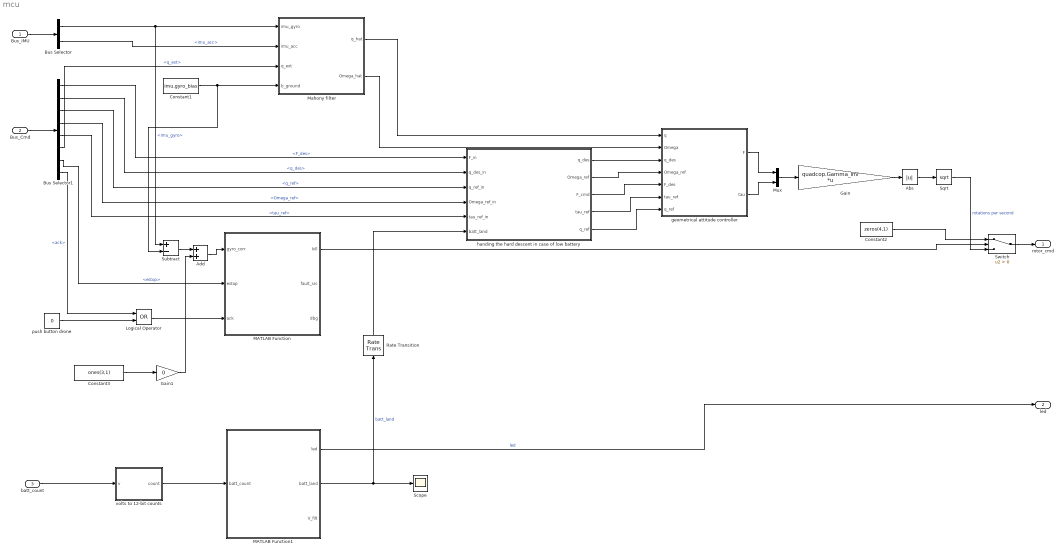
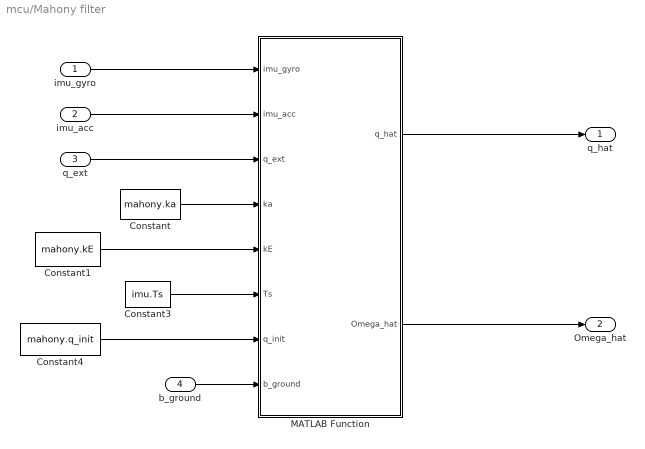
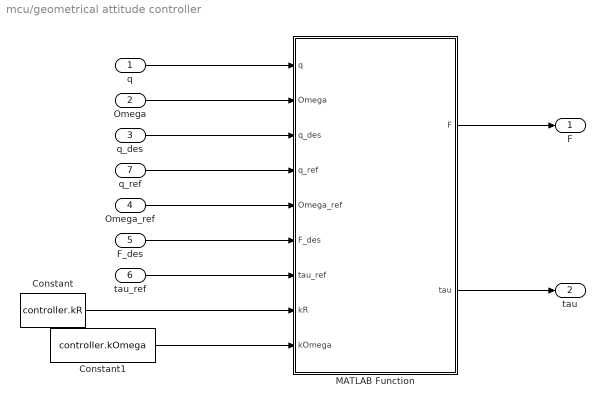
== matlab function mcu/geometrical attitude controller/MATLAB Function ==
function [F, tau] = geo_attitude_ctrl(q, Omega, q_des, q_ref, Omega_ref, F_des, tau_ref, kR, kOmega)
%#codegen
% GEO_ATTITUDE_CTRL Geometrischer Lageregler auf SO(3).
%   Lee/Leok/McClamroch (CDC 2010), 2-DOF Error-Feedback:
%       tau = tau_ff - kR*eR - kOmega*eOmega
%
%   ZWEI getrennte Referenzen (NICHT identisch!):
%     q_des : Solllage aus dem Folgeregler pos_ctrl (mit Positionsrueckfuehrung)
%             -> bestimmt den Lagefehler e_R.
%     q_ref : nominelle Solllage aus traj_gen (reine Vorsteuerung)
%             -> Frame, in dem Omega_ref definiert ist ([Om_ref]x = R_ref' R^T_ref)
%             -> Transport von Omega_ref in den aktuellen Body-Frame.
%
%
%   EIN-/AUSGAENGE:
%     q, Omega         : aktuelle Lage/Drehrate
%     q_des            : Solllage aus pos_ctrl
%     q_ref            : Solllage aus traj_gen 
%     Omega_ref        : Vorsteuer-Drehrate im Body-Frame aus traj_gen
%     F_des, tau_ff    : Vorsteuerung Schub/Moment aus traj_gen
%     kR, kOmega       : 3x3-Gains
%     F, tau           : Schubsollwert, Stellmoment

R    = quat2dcm_local(q)';      
Rdes = quat2dcm_local(q_des)';   
Rref = quat2dcm_local(q_ref)';    

% --- Lagefehler gegen die rueckgefuehrte Solllage R_des ---
S  = 0.5*(Rdes'*R - R'*Rdes);     % schiefsymmetrisch
eR = [S(3,2); S(1,3); S(2,1)];    % vee

% --- Drehratenfehler: Omega_ref aus R_ref-Frame in aktuellen Frame transportieren ---
eOmega = Omega - R'*Rref*Omega_ref;

% --- Stellgesetz ---
tau = tau_ref - kR*eR - kOmega*eOmega;
% Optional voll-geometrisch: 
% tau = tau + cross(Omega, J*Omega);

F = F_des;
end

== matlab function mcu/Mahony filter/MATLAB Function ==
function [q_hat, Omega_hat] = mahony_filter(imu_gyro, imu_acc, q_ext, ka, kE, Ts, q_init, b_ground)
%#codegen
% MAHONY_FILTER  Expliziter Komplementaerfilter auf SO(3), zeitdiskret.
%   Mahony/Hamel/Pflimlin (TAC 2008)). km = 0 (kein Magnetometer)
%
%     - Accel misst spezifische Kraft; im Hover [0;0;-g] -> Richtung
%       v0 = [0;0;-1]. 
%
%   EIN-/AUSGAENGE:
%     imu_gyro [rad/s] (3x1)  : gemessene Koerperdrehrate (mit Bias+Rauschen)
%     imu_acc  [m/s^2] (3x1)  : gemessene spezifische Kraft (Koerper)
%     q_ext    (4x1)          : externe Mocap-Lage 
%     ka, kE, kb (Skalar)     : Tilt-, Externreferenz-, Bias-Gain
%     Ts       [s]            : Abtastperiode 
%     q_init   (4x1)          : Startlage 
%     b_init   (3x1)          : Startbias
%     b_clamp  (Skalar)       : Maximalwert des Bias
%     q_hat    (4x1)          : geschaetzte Lage
%     Omega_hat(3x1)          : bias-korrigierte Drehrate (fuer Lageregler)
%     b_hat    (3x1)          : geschaetzter Gyro-Bias (Diagnose)
%     e_acc    (3x1)          : Innovationsterm zur Diagnose

persistent q
if isempty(q)
    q = q_init; % Startlage
end

% --- 1) Innovation (nur Richtung, Betrag traegt keine Lageinfo) ---
na = norm(imu_acc);
if na > 1e-6
    v_acc = imu_acc / na; % spezifische Kraft DCM_{be}(a -g*[0;0;-1]) in Körperkoordinaten
    v_hat = quatRotate(q, [0; 0; 1]); % geschaetzte Schwerkraftrichtung in Körperkoordinaten
    e_acc = cross(v_acc, v_hat); % Schätzfehler = Innovationsterm
else
    e_acc = [0; 0; 0]; % Freifall = unbrauchbar
end

% --- 2) Externe Mocap-Lage ---
nE = norm(q_ext);
if nE > 0.5
    qe    = q_ext / nE; % normieren da durch Quantisierung/Rauschen q_ext kein Einheitsquaternion
    q_err = quatMul(quatConj(q), qe); % Koerperinkrement, das \hat{q} -> q_ext dreht
    if q_err(1) < 0 
        q_err = -q_err; % kuerzeste Drehung, da Doppeldeckung des SO(3) durch Quaternionen
    end  
    e_ext = 2 * q_err(2:4); % Rotationsvektor (Kleinwinkel ~ Fehlerwinkel)
else
    e_ext = [0; 0; 0]; % kein gueltiges q_ext -> für Innovationsterm nur Gyro und Accel nutzen
end

% --- 3) Gewichtete Gesamt-Innovation (Koerperframe) ---
omega_mes = ka * e_acc + kE * e_ext;

% --- 5) Korrigierte Drehrate + Quaternion-Propagation ---
omega = imu_gyro - b_ground + omega_mes; % Eingang der Kinematik
theta = omega * Ts;
ang   = norm(theta);
if ang > 1e-9
    norm_theta = theta / ang;
    dq = [cos(ang/2); sin(ang/2) * norm_theta];
else
    dq = [1; 0.5 * theta]; % Kleinwinkel-Naeherung
end
q = quatMul(q, dq); % Rechtsmultiplikation = Koerperinkrement
q = q / norm(q); % auf SO(3) halten

% --- 6) Ausgaenge ---
q_hat     = q;
Omega_hat = imu_gyro - b_ground; % Bias-korrigiert
end

== matlab function mcu/MATLAB Function ==
function [kill, fault_src, dbg] = safety_overspeed(gyro_corr, estop, ack, safety)
%#codegen
% SAFETY_OVERSPEED  Onboard-KILL-Latch
%
% Overspeed-Entprell-Latch ∪ Hard-Kill (estop==2).
% Aktion downstream: rotors_cmd = 0  (Override NACH Mixer / VOR Motor-PT1+ESC).
% KILL dominiert LAND; KILL latcht; Re-Arm NIE in der Luft.
%
% Warum eine Funktion fuer beide KILL-Quellen: Overspeed und Hard-Kill teilen
% denselben Latch, dieselbe Aktion (rotors_cmd=0) und dieselbe Re-Arm-Semantik
% (ack loescht). Eine gemeinsame Funktion haelt die Re-Arm-Bedingung an EINER
% Stelle und macht "KILL dominiert LAND" trivial. Der geregelte Soft-Land
% (estop==1) wird hier NICHT behandelt — das ist die GCS-Mode-Maschine.
%
% Eingaenge
%   gyro_corr : 3x1  bias-korrigierte Drehrate [rad/s]  (MESSUNG, nicht Schaetzer!)
%   estop : uint8  0 normal / 1 soft-land / 2 hard-kill (aus Bus_Cmd, Uplink)
%   ack : bool   Quittung, bereits ge-OR-t (Teensy-Taster-Flanke | Bus_Cmd.ack)
%   safety : struct  .omega_max [rad/s], .debounce_N (>=1), .use_norm (bool)
%
% Ausgaenge
%   kill : bool   latched -> nachgelagerter Switch zwingt rotors_cmd=0
%   fault_src : uint8  0 none / 1 overspeed / 2 hard-kill   (LED/Debug)
%   dbg : 3x1    [cnt; over_inst; ack_edge]           (verify/logging)
%
% Re-Arm (FAULT->ARMED) NUR bei:  steigende ack-Flanke  &  ~over_inst  &  estop~=2.
% Die ack-FLANKE (nicht der Pegel) verhindert, dass ein gehaltenes ack einen
% frischen Trip sofort wieder loescht oder mid-air in einen Sturz re-armt. Die
% Boden-Bedingung ("nie in der Luft") wird prozedural durch den physischen
% Teensy-Taster garantiert (Bediener hebt die Drohne auf, drueckt) — onboard
% existiert keine Pos/Vel-Schaetzung fuer ein Logik-Interlock (sitzt GCS-seitig).
% Optionaler Idle-Interlock siehe Hinweis am Dateiende.

persistent latched cnt ack_prev src
if isempty(latched)
    latched = false;
    cnt = uint16(0);
    ack_prev = false;
    src = uint8(0);
end

gw = reshape(gyro_corr, 3, 1);

% --- Overspeed-Detektor, entprellt (N aufeinanderfolgende Samples) ---
if safety.use_norm
    over_inst = sqrt(gw(1)*gw(1) + gw(2)*gw(2) + gw(3)*gw(3)) > safety.omega_max;
else
    over_inst = (abs(gw(1)) > safety.omega_max) || ...
                (abs(gw(2)) > safety.omega_max) || ...
                (abs(gw(3)) > safety.omega_max);
end

Nreq = uint16(safety.debounce_N);
if over_inst
    if cnt < Nreq
        cnt = cnt + uint16(1);
    end
else
    cnt = uint16(0);                 % ein gutes Sample setzt den Zaehler zurueck
end
over_deb = cnt >= Nreq;

% --- Hard-Kill: sofort, keine Entprellung ---
hard_kill = (estop == uint8(2));

% --- KILL setzen (latcht; Quelle nur beim ersten Setzen vermerkt) ---
if over_deb && ~latched
    latched = true;  
    src = uint8(1); % due to fast turning rates from gyro
end
if hard_kill && ~latched
    latched = true;  
    src = uint8(2);
end

% Re-Arm: steigende ack-Flanke 
ack_edge = ack && ~ack_prev;
if latched && ack_edge && ~over_inst && (estop ~= uint8(2)) % momentan kein Overspeed & kein Hard-Kill
    latched = false;
    cnt     = uint16(0);
    src     = uint8(0);
end
ack_prev = ack;

kill      = latched;
fault_src = src;
dbg       = [double(cnt); double(over_inst); double(ack_edge)];
end

% -------------------------------------------------------------------------
% OPTIONALER IDLE-INTERLOCK (nicht aktiviert):
% Will man re-arm zusaetzlich gegen "in der Luft" absichern OHNE Pos-Schaetzung,
% kann onboard ein Throttle-Idle-Proxy gefordert werden, z.B. F_ref <= F_idle:
%   ...&& (F_ref <= safety.F_rearm_idle) ...
% F_ref liegt im empfangenen Bus_Cmd vor. Das ersetzt die Boden-Schaetzung durch
% "Bediener hat heruntergeregelt", bleibt aber Heuristik (Hover braucht m*g>0).
% Bewusst NICHT verdrahtet, bis §13 das fordert.

== matlab function mcu/MATLAB Function1 ==
function [led, batt_land, V_filt] = safety_battery(batt_count, safety)
%#codegen
% safety_battery Onboard-Batterie-Monitor, 4S LiPo via PM06 V2.
%
% Kette: ADC-count --> V_batt --> V_filt --> led
%        V_filt <= V_floor --(Latch bis Reboot) --> batt_land
%
%   WARN/CRIT -> LED. Bediener im Raum sieht sie, loest MANUELL GCS-Soft-Land
%               (estop=1 => Uplink) aus, solange Marge da ist.
%   FLOOR     -> batt_land = true -> onboard BLINDER Hard-Floor-Descent 
%               (safety_landcmd.m) als Backstop, falls niemand reagiert.
% KILL (Overspeed/Hard-Kill) dominiert: rotors_cmd=0 nachgelagert sticht jeden LAND.
%
% LATCH IST PERMANENT —> KEIN Re-Arm. Zwei Gruende:
%   1) Akkuwechsel = Teensy-Reboot -> persistent wird genullt.
%   2) WICHTIGER: Im Descent faellt der Schub auf 0.98*m*g -> weniger Strom ->
%      V erholt sich UEBER den Floor. Ohne Latch wuerde batt_land deasserten,
%      das GCS-Kommando (Hover @ m*g) kaeme zurueck, Last steigt, V sackt wieder
%      -> GRENZZYKLUS Sinken<->Schweben auf fast leerem Akku. Der Latch verhindert
%      das: einmal committed -> bis zum Boden sinken.
%
% Eingaenge:
%   batt_count : ADC-Rohwert (12 bit, 0..4095). In Sim aus simulierter V-Rampe
%                (count = round((V_batt - b)/k)); auf HW analogRead(A16/Pin40).
%   safety     : struct  .batt_k .batt_b .batt_alpha .V_warn .V_crit .V_floor
%                        .V_hyst
% Ausgaenge:
%   led        : uint8  0 NORMAL / 1 WARN / 2 CRIT   (-> GPIO-Blinkmuster)
%   batt_land  : bool   latched -> safety_landcmd Hard-Floor-Override
%   V_filt     : double gefilterte Batteriespannung [V]  (dbg/logging)
%
% Hysterese: Recovery (Richtung NORMAL) braucht + V_hyst -> kein Flattern bei
% Last-Sag/Rauschen. (tau ~0.5..1 s) glaettet Sag + Rauschen UND verhindert,
% dass ein kurzer Spannungseinbruch unter Last den Floor faelschlich triggert.

persistent Vf state landed
if isempty(Vf)
    Vf     = safety.batt_k * double(batt_count) + safety.batt_b;  % init
    state  = uint8(0);
    landed = false;
end

% --- ADC -> Spannung ---
V_raw = safety.batt_k * double(batt_count) + safety.batt_b;

% --- Tiefpass: V_filt += alpha*(V_raw - V_filt) ---
Vf = Vf + safety.batt_alpha * (V_raw - Vf);
V  = Vf;

% --- 3-stufige LED mit Hysterese (Batterienzeige) ---
% NORMAL(0) -> WARN(1) -> CRIT(2); Rueckweg braucht + V_hyst.
switch state
    case uint8(0) % NORMAL
        if V <= safety.V_warn                     
            state = uint8(1); 
        end
    case uint8(1) % WARN
        if V <= safety.V_crit                 
            state = uint8(2);
        elseif V >= safety.V_warn + safety.V_hyst
            state = uint8(0); 
        end
    otherwise % CRIT (2)
        if V >= safety.V_crit + safety.V_hyst     
            state = uint8(1); 
        end
end

% --- harte Landung ---
if V <= safety.V_floor
    landed = true;
end

led       = state;
batt_land = landed;
V_filt    = V;
end

== matlab function mcu/volts to 12-bit counts ==
function count = v2c(v, safety)

count = round((v - safety.batt_b)/safety.batt_k);

== matlab function mcu/handing the hard descent in case of low battery ==
function [q_des, Omega_ref, F_cmd, tau_ref, q_ref] = ...
         safety_landcmd(F_in, q_des_in, q_ref_in, Omega_ref_in, tau_ref_in, ...
                        batt_land, safety)
%#codegen
% SAFETY_LANDCMD  Onboard BLINDE harte Landung
%
% Sitzt im Pfad VOR geo_attitude_ctrl. Bei batt_land = true ueberschreibt
% er den empfangenen Kommandosatz durch einen blinden Sinkflug.
% BLIND, weil onboard KEINE Pos/Vel-Schaetzung existiert. 
%
% Eingaenge: 
%   F_in         : scalar  Schub-Kommando an geo_attitude_ctrl (F = F_des)
%   q_des_in     : 4x1     Folgeregler-Lage (pos_ctrl)
%   q_ref_in     : 4x1     Vorsteuerlage (traj_gen)
%   Omega_ref_in : 3x1     Vorsteuer-Rate
%   tau_ref_in   : 3x1     Vorsteuer-Moment
%   batt_land    : bool    aus safety_battery 
%   safety       : struct  .m .g .hardfloor_thrust_frac 
% Ausgaenge an geo_attitude_ctrl.

    if batt_land
        F_cmd     = safety.hardfloor_thrust_frac * safety.m * safety.g;  % < m*g
        q_des     = [1; 0; 0; 0];     
        q_ref     = [1; 0; 0; 0];
        Omega_ref = [0; 0; 0];
        tau_ref   = [0; 0; 0];
    else
        F_cmd     = F_in;
        q_des = q_des_in;
        q_ref = q_ref_in;
        Omega_ref = Omega_ref_in;
        tau_ref = tau_ref_in;
    
    end
end

//
// Academic License - for use in teaching, academic research, and meeting
// course requirements at degree granting institutions only.  Not for
// government, commercial, or other organizational use.
//
// File: mcu.cpp
//
// Code generated for Simulink model 'mcu'.
//
// Model version                  : 1.245
// Simulink Coder version         : 25.2 (R2025b) 28-Jul-2025
// C/C++ source code generated on : Tue Jul  7 16:24:37 2026
//
// Target selection: ert.tlc
// Embedded hardware selection: Intel->x86-64 (Windows64)
// Code generation objectives: Unspecified
// Validation result: Not run
//
#include "mcu.h"
#include "rtwtypes.h"
#include <emmintrin.h>
#include <cmath>
#include "mcu_private.h"

static void rate_scheduler(MCU::RT_MODEL_mcu_T *const mcu_M);

//
//         This function updates active task flag for each subrate.
//         The function is called at model base rate, hence the
//         generated code self-manages all its subrates.
//
static void rate_scheduler(MCU::RT_MODEL_mcu_T *const mcu_M)
{
  // Compute which subrates run during the next base time step.  Subrates
  //  are an integer multiple of the base rate counter.  Therefore, the subtask
  //  counter is reset when it reaches its limit (zero means run).

  (mcu_M->Timing.TaskCounters.TID[1])++;
  if ((mcu_M->Timing.TaskCounters.TID[1]) > 999) {// Sample time: [1.0s, 0.0s]
    mcu_M->Timing.TaskCounters.TID[1] = 0;
  }
}

// Function for MATLAB Function: '<S3>/MATLAB Function'
real_T MCU::mcu_norm(const real_T x[3])
{
  real_T absxk;
  real_T scale;
  real_T t;
  real_T y;
  scale = 3.3121686421112381E-170;
  absxk = std::abs(x[0]);
  if (absxk > 3.3121686421112381E-170) {
    y = 1.0;
    scale = absxk;
  } else {
    t = absxk / 3.3121686421112381E-170;
    y = t * t;
  }

  absxk = std::abs(x[1]);
  if (absxk > scale) {
    t = scale / absxk;
    y = y * t * t + 1.0;
    scale = absxk;
  } else {
    t = absxk / scale;
    y += t * t;
  }

  absxk = std::abs(x[2]);
  if (absxk > scale) {
    t = scale / absxk;
    y = y * t * t + 1.0;
    scale = absxk;
  } else {
    t = absxk / scale;
    y += t * t;
  }

  return scale * std::sqrt(y);
}

// Function for MATLAB Function: '<S3>/MATLAB Function'
real_T MCU::mcu_norm_j(const real_T x[4])
{
  real_T absxk;
  real_T scale;
  real_T t;
  real_T y;
  scale = 3.3121686421112381E-170;
  absxk = std::abs(x[0]);
  if (absxk > 3.3121686421112381E-170) {
    y = 1.0;
    scale = absxk;
  } else {
    t = absxk / 3.3121686421112381E-170;
    y = t * t;
  }

  absxk = std::abs(x[1]);
  if (absxk > scale) {
    t = scale / absxk;
    y = y * t * t + 1.0;
    scale = absxk;
  } else {
    t = absxk / scale;
    y += t * t;
  }

  absxk = std::abs(x[2]);
  if (absxk > scale) {
    t = scale / absxk;
    y = y * t * t + 1.0;
    scale = absxk;
  } else {
    t = absxk / scale;
    y += t * t;
  }

  absxk = std::abs(x[3]);
  if (absxk > scale) {
    t = scale / absxk;
    y = y * t * t + 1.0;
    scale = absxk;
  } else {
    t = absxk / scale;
    y += t * t;
  }

  return scale * std::sqrt(y);
}

real_T rt_roundd(real_T u)
{
  real_T y;
  if (std::abs(u) < 4.503599627370496E+15) {
    if (u >= 0.5) {
      y = std::floor(u + 0.5);
    } else if (u > -0.5) {
      y = 0.0;
    } else {
      y = std::ceil(u - 0.5);
    }
  } else {
    y = u;
  }

  return y;
}

// Model step function
void MCU::step()
{
  __m128d tmp_3;
  __m128d tmp_5;
  __m128d tmp_6;
  __m128d tmp_7;
  real_T R[9];
  real_T Rdes[9];
  real_T Rdes_0[9];
  real_T S_tmp[9];
  real_T S_tmp_0[9];
  real_T rtb_F_cmd_0[4];
  real_T rtb_Add[3];
  real_T rtb_tau_ref[3];
  real_T rtb_tau_ref_0[3];
  real_T theta[3];
  real_T tmp_2[3];
  real_T tmp_4[2];
  real_T R_tmp;
  real_T R_tmp_0;
  real_T R_tmp_1;
  real_T R_tmp_2;
  real_T Rdes_tmp;
  real_T Rdes_tmp_0;
  real_T Rdes_tmp_1;
  real_T Rdes_tmp_2;
  real_T na;
  real_T q_err_idx_1;
  real_T q_err_idx_2;
  real_T q_err_idx_3;
  real_T rtb_q_des_idx_1;
  real_T rtb_q_des_idx_2;
  real_T rtb_q_des_idx_3;
  real_T rtb_q_ref_idx_2;
  real_T rtb_q_ref_idx_3;
  real_T tmp;
  real_T tmp_0;
  real_T tmp_1;
  int32_T S_tmp_tmp;
  int32_T S_tmp_tmp_0;
  int32_T i;
  int32_T i_0;
  boolean_T over_inst;
  static const int8_T b_b[3]{ 0, 0, 1 };

  // Sum: '<Root>/Add' incorporates:
  //   Constant: '<Root>/Constant1'
  //   Gain: '<Root>/Gain1'
  //   Inport: '<Root>/Bus_IMU'
  //   Sum: '<Root>/Subtract'

  _mm_storeu_pd(&rtb_Add[0], _mm_add_pd(_mm_sub_pd(_mm_loadu_pd
    (&mcu_U.Bus_IMU_k.imu_gyro[0]), _mm_set_pd(-0.17453292519943295,
    0.17453292519943295)), _mm_loadu_pd(&mcu_ConstB.Gain1[0])));
  rtb_Add[2] = (mcu_U.Bus_IMU_k.imu_gyro[2] - 0.17453292519943295) +
    mcu_ConstB.Gain1[2];

  // MATLAB Function: '<Root>/MATLAB Function' incorporates:
  //   Inport: '<Root>/Bus_Cmd'
  //   Logic: '<Root>/Logical Operator'
  //   Sum: '<Root>/Add'

  over_inst = (std::sqrt((rtb_Add[0] * rtb_Add[0] + rtb_Add[1] * rtb_Add[1]) +
    rtb_Add[2] * rtb_Add[2]) > 10.0);
  if (over_inst) {
    if (mcu_DW.cnt < 4) {
      mcu_DW.cnt = static_cast<uint16_T>(mcu_DW.cnt + 1);
    }
  } else {
    mcu_DW.cnt = 0U;
  }

  mcu_DW.latched = (((mcu_DW.cnt >= 4) && (!mcu_DW.latched)) || mcu_DW.latched);
  mcu_DW.latched = (((mcu_U.Bus_Cmd_l.estop == 2) && (!mcu_DW.latched)) ||
                    mcu_DW.latched);
  if (mcu_DW.latched && (mcu_U.Bus_Cmd_l.ack && (!mcu_DW.ack_prev)) &&
      (!over_inst) && (mcu_U.Bus_Cmd_l.estop != 2)) {
    mcu_DW.latched = false;
    mcu_DW.cnt = 0U;
  }

  mcu_DW.ack_prev = mcu_U.Bus_Cmd_l.ack;

  // MATLAB Function: '<S3>/MATLAB Function' incorporates:
  //   Constant: '<Root>/Constant1'
  //   Constant: '<S3>/Constant1'
  //   Constant: '<S3>/Constant3'
  //   Constant: '<S3>/Constant4'
  //   Inport: '<Root>/Bus_Cmd'
  //   Inport: '<Root>/Bus_IMU'

  if (!mcu_DW.q_not_empty) {
    mcu_DW.q[0] = 1.0;
    mcu_DW.q[1] = 0.0;
    mcu_DW.q[2] = 0.0;
    mcu_DW.q[3] = 0.0;
    mcu_DW.q_not_empty = true;
  }

  na = mcu_norm(mcu_U.Bus_IMU_k.imu_acc);
  if (na > 1.0E-6) {
    R_tmp = mcu_DW.q[0] * mcu_DW.q[0];
    q_err_idx_2 = mcu_DW.q[1] * mcu_DW.q[1];
    q_err_idx_3 = mcu_DW.q[2] * mcu_DW.q[2];
    q_err_idx_1 = mcu_DW.q[3] * mcu_DW.q[3];
    S_tmp[0] = ((R_tmp + q_err_idx_2) - q_err_idx_3) - q_err_idx_1;
    tmp_6 = _mm_set1_pd(mcu_DW.q[0]);
    tmp_7 = _mm_set1_pd(2.0);
    tmp_5 = _mm_mul_pd(_mm_add_pd(_mm_mul_pd(_mm_set1_pd(mcu_DW.q[1]),
      _mm_loadu_pd(&mcu_DW.q[2])), _mm_mul_pd(_mm_mul_pd(tmp_6, _mm_set_pd
      (mcu_DW.q[2], mcu_DW.q[3])), _mm_set_pd(-1.0, 1.0))), tmp_7);
    _mm_storeu_pd(&tmp_4[0], tmp_5);
    S_tmp[3] = tmp_4[0];
    S_tmp[6] = tmp_4[1];
    S_tmp[1] = (mcu_DW.q[1] * mcu_DW.q[2] - mcu_DW.q[0] * mcu_DW.q[3]) * 2.0;
    R_tmp -= q_err_idx_2;
    S_tmp[4] = (R_tmp + q_err_idx_3) - q_err_idx_1;
    tmp_6 = _mm_mul_pd(_mm_add_pd(_mm_mul_pd(_mm_set_pd(mcu_DW.q[1], mcu_DW.q[2]),
      _mm_set1_pd(mcu_DW.q[3])), _mm_mul_pd(tmp_6, _mm_loadu_pd(&mcu_DW.q[1]))),
                       tmp_7);
    _mm_storeu_pd(&tmp_4[0], tmp_6);
    S_tmp[7] = tmp_4[0];
    S_tmp[2] = tmp_4[1];
    S_tmp[5] = (mcu_DW.q[2] * mcu_DW.q[3] - mcu_DW.q[0] * mcu_DW.q[1]) * 2.0;
    S_tmp[8] = (R_tmp - q_err_idx_3) + q_err_idx_1;
    rtb_Add[0] = mcu_U.Bus_IMU_k.imu_acc[0] / na;
    rtb_Add[1] = mcu_U.Bus_IMU_k.imu_acc[1] / na;
    rtb_Add[2] = mcu_U.Bus_IMU_k.imu_acc[2] / na;
    na = 0.0;
    rtb_q_des_idx_1 = 0.0;
    rtb_q_des_idx_2 = 0.0;
    for (i = 0; i < 3; i++) {
      R_tmp = b_b[i];
      tmp_6 = _mm_add_pd(_mm_mul_pd(_mm_loadu_pd(&S_tmp[3 * i]), _mm_set1_pd
        (R_tmp)), _mm_set_pd(rtb_q_des_idx_1, na));
      _mm_storeu_pd(&tmp_4[0], tmp_6);
      na = tmp_4[0];
      rtb_q_des_idx_1 = tmp_4[1];
      rtb_q_des_idx_2 += S_tmp[3 * i + 2] * R_tmp;
    }

    _mm_storeu_pd(&theta[0], _mm_sub_pd(_mm_mul_pd(_mm_set_pd(na, rtb_Add[1]),
      _mm_set_pd(rtb_Add[2], rtb_q_des_idx_2)), _mm_mul_pd(_mm_set_pd(rtb_Add[0],
      rtb_q_des_idx_1), _mm_set_pd(rtb_q_des_idx_2, rtb_Add[2]))));
    theta[2] = rtb_Add[0] * rtb_q_des_idx_1 - na * rtb_Add[1];
  } else {
    theta[0] = 0.0;
    theta[1] = 0.0;
    theta[2] = 0.0;
  }

  na = mcu_norm_j(mcu_U.Bus_Cmd_l.q_ext);
  if (na > 0.5) {
    tmp_6 = _mm_set1_pd(na);
    _mm_storeu_pd(&tmp_4[0], _mm_div_pd(_mm_loadu_pd(&mcu_U.Bus_Cmd_l.q_ext[0]),
      tmp_6));
    na = tmp_4[0];
    rtb_q_des_idx_1 = tmp_4[1];
    _mm_storeu_pd(&tmp_4[0], _mm_div_pd(_mm_loadu_pd(&mcu_U.Bus_Cmd_l.q_ext[2]),
      tmp_6));
    rtb_q_des_idx_2 = tmp_4[0];
    rtb_q_des_idx_3 = tmp_4[1];
    _mm_storeu_pd(&tmp_4[0], _mm_add_pd(_mm_add_pd(_mm_add_pd(_mm_mul_pd
      (_mm_set1_pd(mcu_DW.q[0]), _mm_set_pd(tmp_4[0], rtb_q_des_idx_1)),
      _mm_mul_pd(_mm_mul_pd(_mm_set_pd(-mcu_DW.q[1], na), _mm_set_pd(tmp_4[1],
      -mcu_DW.q[1])), _mm_set_pd(-1.0, 1.0))), _mm_mul_pd(_mm_set_pd(na,
      -mcu_DW.q[2]), _mm_set_pd(-mcu_DW.q[2], tmp_4[1]))), _mm_mul_pd(_mm_mul_pd
      (_mm_set_pd(rtb_q_des_idx_1, tmp_4[0]), _mm_set1_pd(-mcu_DW.q[3])),
      _mm_set_pd(1.0, -1.0))));
    q_err_idx_1 = tmp_4[0];
    q_err_idx_2 = tmp_4[1];
    q_err_idx_3 = ((mcu_DW.q[0] * rtb_q_des_idx_3 + -mcu_DW.q[1] *
                    rtb_q_des_idx_2) - rtb_q_des_idx_1 * -mcu_DW.q[2]) + na *
      -mcu_DW.q[3];
    if (((mcu_DW.q[0] * na - -mcu_DW.q[1] * rtb_q_des_idx_1) - -mcu_DW.q[2] *
         rtb_q_des_idx_2) - -mcu_DW.q[3] * rtb_q_des_idx_3 < 0.0) {
      q_err_idx_1 = -tmp_4[0];
      q_err_idx_2 = -tmp_4[1];
      q_err_idx_3 = -q_err_idx_3;
    }

    rtb_tau_ref[0] = 2.0 * q_err_idx_1;
    rtb_tau_ref[1] = 2.0 * q_err_idx_2;
    rtb_tau_ref[2] = 2.0 * q_err_idx_3;
  } else {
    rtb_tau_ref[0] = 0.0;
    rtb_tau_ref[1] = 0.0;
    rtb_tau_ref[2] = 0.0;
  }

  rtb_Add[0] = mcu_U.Bus_IMU_k.imu_gyro[0] - 0.17453292519943295;
  theta[0] = ((25.0 * rtb_tau_ref[0] + theta[0]) + (mcu_U.Bus_IMU_k.imu_gyro[0]
    - 0.17453292519943295)) * 0.001;
  rtb_Add[1] = mcu_U.Bus_IMU_k.imu_gyro[1] - -0.17453292519943295;
  theta[1] = ((25.0 * rtb_tau_ref[1] + theta[1]) + (mcu_U.Bus_IMU_k.imu_gyro[1]
    - -0.17453292519943295)) * 0.001;
  rtb_Add[2] = mcu_U.Bus_IMU_k.imu_gyro[2] - 0.17453292519943295;
  theta[2] = ((25.0 * rtb_tau_ref[2] + theta[2]) + (mcu_U.Bus_IMU_k.imu_gyro[2]
    - 0.17453292519943295)) * 0.001;
  q_err_idx_1 = mcu_norm(theta);
  if (q_err_idx_1 > 1.0E-9) {
    na = q_err_idx_1 / 2.0;
    rtb_q_des_idx_3 = std::sin(na);
    na = std::cos(na);
    tmp_6 = _mm_mul_pd(_mm_div_pd(_mm_loadu_pd(&theta[0]), _mm_set1_pd
      (q_err_idx_1)), _mm_set1_pd(rtb_q_des_idx_3));
    _mm_storeu_pd(&tmp_4[0], tmp_6);
    rtb_q_des_idx_1 = tmp_4[0];
    rtb_q_des_idx_2 = tmp_4[1];
    rtb_q_des_idx_3 *= theta[2] / q_err_idx_1;
  } else {
    na = 1.0;
    tmp_6 = _mm_mul_pd(_mm_set1_pd(0.5), _mm_loadu_pd(&theta[0]));
    _mm_storeu_pd(&tmp_4[0], tmp_6);
    rtb_q_des_idx_1 = tmp_4[0];
    rtb_q_des_idx_2 = tmp_4[1];
    rtb_q_des_idx_3 = 0.5 * theta[2];
  }

  R_tmp = mcu_DW.q[0];
  q_err_idx_2 = mcu_DW.q[1];
  q_err_idx_3 = mcu_DW.q[2];
  q_err_idx_1 = mcu_DW.q[3];
  rtb_q_ref_idx_2 = mcu_DW.q[0];
  rtb_q_ref_idx_3 = mcu_DW.q[1];
  R_tmp_0 = mcu_DW.q[2];
  R_tmp_1 = mcu_DW.q[3];
  R_tmp_2 = mcu_DW.q[0];
  Rdes_tmp = mcu_DW.q[1];
  Rdes_tmp_0 = mcu_DW.q[2];
  Rdes_tmp_1 = mcu_DW.q[3];
  Rdes_tmp_2 = mcu_DW.q[0];
  tmp = mcu_DW.q[1];
  tmp_0 = mcu_DW.q[2];
  tmp_1 = mcu_DW.q[3];
  mcu_DW.q[0] = ((R_tmp * na - q_err_idx_2 * rtb_q_des_idx_1) - q_err_idx_3 *
                 rtb_q_des_idx_2) - q_err_idx_1 * rtb_q_des_idx_3;
  mcu_DW.q[1] = ((rtb_q_ref_idx_2 * rtb_q_des_idx_1 + na * rtb_q_ref_idx_3) +
                 R_tmp_0 * rtb_q_des_idx_3) - rtb_q_des_idx_2 * R_tmp_1;
  mcu_DW.q[2] = ((R_tmp_2 * rtb_q_des_idx_2 - Rdes_tmp * rtb_q_des_idx_3) + na *
                 Rdes_tmp_0) + rtb_q_des_idx_1 * Rdes_tmp_1;
  mcu_DW.q[3] = ((Rdes_tmp_2 * rtb_q_des_idx_3 + tmp * rtb_q_des_idx_2) -
                 rtb_q_des_idx_1 * tmp_0) + na * tmp_1;
  tmp_6 = _mm_set1_pd(mcu_norm_j(mcu_DW.q));
  tmp_7 = _mm_div_pd(_mm_loadu_pd(&mcu_DW.q[0]), tmp_6);
  _mm_storeu_pd(&mcu_DW.q[0], tmp_7);
  tmp_6 = _mm_div_pd(_mm_loadu_pd(&mcu_DW.q[2]), tmp_6);
  _mm_storeu_pd(&mcu_DW.q[2], tmp_6);

  // RateTransition: '<Root>/Rate Transition'
  over_inst = ((&mcu_M)->Timing.TaskCounters.TID[1] == 0);
  if (over_inst) {
    // RateTransition: '<Root>/Rate Transition'
    mcu_B.RateTransition = mcu_DW.RateTransition_Buffer0;
  }

  // End of RateTransition: '<Root>/Rate Transition'

  // MATLAB Function: '<Root>/handing the hard descent in case of low battery' incorporates:
  //   Inport: '<Root>/Bus_Cmd'

  if (mcu_B.RateTransition) {
    q_err_idx_1 = 9.3719834999999989;
    na = 1.0;
    q_err_idx_2 = 1.0;
    rtb_q_des_idx_1 = 0.0;
    q_err_idx_3 = 0.0;
    rtb_q_des_idx_2 = 0.0;
    rtb_q_ref_idx_2 = 0.0;
    rtb_q_des_idx_3 = 0.0;
    rtb_q_ref_idx_3 = 0.0;
    theta[0] = 0.0;
    rtb_tau_ref[0] = 0.0;
    theta[1] = 0.0;
    rtb_tau_ref[1] = 0.0;
    theta[2] = 0.0;
    rtb_tau_ref[2] = 0.0;
  } else {
    q_err_idx_1 = mcu_U.Bus_Cmd_l.F_des;
    na = mcu_U.Bus_Cmd_l.q_des[0];
    q_err_idx_2 = mcu_U.Bus_Cmd_l.q_ref[0];
    rtb_q_des_idx_1 = mcu_U.Bus_Cmd_l.q_des[1];
    q_err_idx_3 = mcu_U.Bus_Cmd_l.q_ref[1];
    rtb_q_des_idx_2 = mcu_U.Bus_Cmd_l.q_des[2];
    rtb_q_ref_idx_2 = mcu_U.Bus_Cmd_l.q_ref[2];
    rtb_q_des_idx_3 = mcu_U.Bus_Cmd_l.q_des[3];
    rtb_q_ref_idx_3 = mcu_U.Bus_Cmd_l.q_ref[3];
    theta[0] = mcu_U.Bus_Cmd_l.Omega_ref[0];
    rtb_tau_ref[0] = mcu_U.Bus_Cmd_l.tau_ref[0];
    theta[1] = mcu_U.Bus_Cmd_l.Omega_ref[1];
    rtb_tau_ref[1] = mcu_U.Bus_Cmd_l.tau_ref[1];
    theta[2] = mcu_U.Bus_Cmd_l.Omega_ref[2];
    rtb_tau_ref[2] = mcu_U.Bus_Cmd_l.tau_ref[2];
  }

  // End of MATLAB Function: '<Root>/handing the hard descent in case of low battery' 

  // MATLAB Function: '<S4>/MATLAB Function'
  R_tmp = mcu_DW.q[0] * mcu_DW.q[0];
  R_tmp_0 = mcu_DW.q[1] * mcu_DW.q[1];
  R_tmp_1 = mcu_DW.q[2] * mcu_DW.q[2];
  R_tmp_2 = mcu_DW.q[3] * mcu_DW.q[3];
  R[0] = ((R_tmp + R_tmp_0) - R_tmp_1) - R_tmp_2;
  tmp_6 = _mm_set1_pd(mcu_DW.q[0]);
  tmp_7 = _mm_set1_pd(2.0);
  tmp_5 = _mm_mul_pd(_mm_add_pd(_mm_mul_pd(_mm_set1_pd(mcu_DW.q[1]),
    _mm_loadu_pd(&mcu_DW.q[2])), _mm_mul_pd(_mm_mul_pd(tmp_6, _mm_set_pd
    (mcu_DW.q[2], mcu_DW.q[3])), _mm_set_pd(-1.0, 1.0))), tmp_7);
  _mm_storeu_pd(&R[1], tmp_5);
  R[3] = (mcu_DW.q[1] * mcu_DW.q[2] - mcu_DW.q[0] * mcu_DW.q[3]) * 2.0;
  R_tmp -= R_tmp_0;
  R[4] = (R_tmp + R_tmp_1) - R_tmp_2;
  tmp_6 = _mm_mul_pd(_mm_add_pd(_mm_mul_pd(_mm_set_pd(mcu_DW.q[1], mcu_DW.q[2]),
    _mm_set1_pd(mcu_DW.q[3])), _mm_mul_pd(tmp_6, _mm_loadu_pd(&mcu_DW.q[1]))),
                     tmp_7);
  _mm_storeu_pd(&R[5], tmp_6);
  R[7] = (mcu_DW.q[2] * mcu_DW.q[3] - mcu_DW.q[0] * mcu_DW.q[1]) * 2.0;
  R[8] = (R_tmp - R_tmp_1) + R_tmp_2;
  R_tmp = na * na;
  R_tmp_0 = rtb_q_des_idx_1 * rtb_q_des_idx_1;
  R_tmp_1 = rtb_q_des_idx_2 * rtb_q_des_idx_2;
  R_tmp_2 = rtb_q_des_idx_3 * rtb_q_des_idx_3;
  Rdes[0] = ((R_tmp + R_tmp_0) - R_tmp_1) - R_tmp_2;
  Rdes_tmp = rtb_q_des_idx_1 * rtb_q_des_idx_2;
  Rdes_tmp_0 = na * rtb_q_des_idx_3;
  Rdes[1] = (Rdes_tmp + Rdes_tmp_0) * 2.0;
  Rdes_tmp_1 = rtb_q_des_idx_1 * rtb_q_des_idx_3;
  Rdes_tmp_2 = na * rtb_q_des_idx_2;
  Rdes[2] = (Rdes_tmp_1 - Rdes_tmp_2) * 2.0;
  Rdes[3] = (Rdes_tmp - Rdes_tmp_0) * 2.0;
  R_tmp -= R_tmp_0;
  Rdes[4] = (R_tmp + R_tmp_1) - R_tmp_2;
  R_tmp_0 = rtb_q_des_idx_2 * rtb_q_des_idx_3;
  Rdes_tmp = na * rtb_q_des_idx_1;
  Rdes[5] = (R_tmp_0 + Rdes_tmp) * 2.0;
  Rdes[6] = (Rdes_tmp_1 + Rdes_tmp_2) * 2.0;
  Rdes[7] = (R_tmp_0 - Rdes_tmp) * 2.0;
  Rdes[8] = (R_tmp - R_tmp_1) + R_tmp_2;
  for (i = 0; i < 3; i++) {
    for (i_0 = 0; i_0 < 3; i_0++) {
      S_tmp_tmp = 3 * i + i_0;
      S_tmp[S_tmp_tmp] = R[3 * i_0 + i];
      Rdes_0[S_tmp_tmp] = (Rdes[3 * i_0 + 1] * R[3 * i + 1] + Rdes[3 * i_0] * R
                           [3 * i]) + Rdes[3 * i_0 + 2] * R[3 * i + 2];
      S_tmp_0[S_tmp_tmp] = 0.0;
    }
  }

  for (i = 0; i < 3; i++) {
    rtb_q_des_idx_3 = S_tmp_0[3 * i];
    S_tmp_tmp = 3 * i + 1;
    R_tmp_0 = S_tmp_0[S_tmp_tmp];
    S_tmp_tmp_0 = 3 * i + 2;
    R_tmp_1 = S_tmp_0[S_tmp_tmp_0];
    for (i_0 = 0; i_0 < 3; i_0++) {
      R_tmp = Rdes[3 * i + i_0];
      tmp_6 = _mm_add_pd(_mm_mul_pd(_mm_loadu_pd(&S_tmp[3 * i_0]), _mm_set1_pd
        (R_tmp)), _mm_set_pd(R_tmp_0, rtb_q_des_idx_3));
      _mm_storeu_pd(&tmp_4[0], tmp_6);
      rtb_q_des_idx_3 = tmp_4[0];
      R_tmp_0 = tmp_4[1];
      R_tmp_1 += S_tmp[3 * i_0 + 2] * R_tmp;
    }

    S_tmp_0[S_tmp_tmp_0] = R_tmp_1;
    S_tmp_0[S_tmp_tmp] = R_tmp_0;
    S_tmp_0[3 * i] = rtb_q_des_idx_3;
  }

  for (i = 0; i <= 6; i += 2) {
    tmp_6 = _mm_loadu_pd(&Rdes_0[i]);
    tmp_7 = _mm_loadu_pd(&S_tmp_0[i]);
    _mm_storeu_pd(&R[i], _mm_mul_pd(_mm_sub_pd(tmp_6, tmp_7), _mm_set1_pd(0.5)));
  }

  for (i = 8; i < 9; i++) {
    R[i] = (Rdes_0[i] - S_tmp_0[i]) * 0.5;
  }

  // Switch: '<Root>/Switch' incorporates:
  //   MATLAB Function: '<Root>/MATLAB Function'
  //   MATLAB Function: '<S4>/MATLAB Function'
  //   SignalConversion generated from: '<Root>/Gain'

  if (mcu_DW.latched) {
    // Outport: '<Root>/rotor_cmd' incorporates:
    //   Constant: '<Root>/Constant2'

    mcu_Y.rotor_cmd[0] = 0.0;
    mcu_Y.rotor_cmd[1] = 0.0;
    mcu_Y.rotor_cmd[2] = 0.0;
    mcu_Y.rotor_cmd[3] = 0.0;
  } else {
    // MATLAB Function: '<S4>/MATLAB Function' incorporates:
    //   Constant: '<S4>/Constant'
    //   Constant: '<S4>/Constant1'
    //   MATLAB Function: '<S3>/MATLAB Function'

    na = R[5];
    rtb_q_des_idx_1 = R[6];
    rtb_q_des_idx_2 = R[1];
    rtb_q_des_idx_3 = q_err_idx_2 * q_err_idx_2;
    R_tmp = q_err_idx_3 * q_err_idx_3;
    R_tmp_0 = rtb_q_ref_idx_2 * rtb_q_ref_idx_2;
    R_tmp_1 = rtb_q_ref_idx_3 * rtb_q_ref_idx_3;
    Rdes_0[0] = ((rtb_q_des_idx_3 + R_tmp) - R_tmp_0) - R_tmp_1;
    R_tmp_2 = q_err_idx_3 * rtb_q_ref_idx_2;
    Rdes_tmp = q_err_idx_2 * rtb_q_ref_idx_3;
    Rdes_0[1] = (R_tmp_2 + Rdes_tmp) * 2.0;
    Rdes_tmp_0 = q_err_idx_3 * rtb_q_ref_idx_3;
    Rdes_tmp_1 = q_err_idx_2 * rtb_q_ref_idx_2;
    Rdes_0[2] = (Rdes_tmp_0 - Rdes_tmp_1) * 2.0;
    Rdes_0[3] = (R_tmp_2 - Rdes_tmp) * 2.0;
    rtb_q_des_idx_3 -= R_tmp;
    Rdes_0[4] = (rtb_q_des_idx_3 + R_tmp_0) - R_tmp_1;
    R_tmp = rtb_q_ref_idx_2 * rtb_q_ref_idx_3;
    R_tmp_2 = q_err_idx_2 * q_err_idx_3;
    Rdes_0[5] = (R_tmp + R_tmp_2) * 2.0;
    Rdes_0[6] = (Rdes_tmp_0 + Rdes_tmp_1) * 2.0;
    Rdes_0[7] = (R_tmp - R_tmp_2) * 2.0;
    Rdes_0[8] = (rtb_q_des_idx_3 - R_tmp_0) + R_tmp_1;
    for (i = 0; i < 3; i++) {
      rtb_q_des_idx_3 = 0.0;
      R_tmp_0 = 0.0;
      R_tmp_1 = 0.0;
      for (i_0 = 0; i_0 < 3; i_0++) {
        R_tmp = Rdes_0[3 * i + i_0];
        tmp_6 = _mm_add_pd(_mm_mul_pd(_mm_loadu_pd(&S_tmp[3 * i_0]), _mm_set1_pd
          (R_tmp)), _mm_set_pd(R_tmp_0, rtb_q_des_idx_3));
        _mm_storeu_pd(&tmp_4[0], tmp_6);
        rtb_q_des_idx_3 = tmp_4[0];
        R_tmp_0 = tmp_4[1];
        R_tmp_1 += S_tmp[3 * i_0 + 2] * R_tmp;
      }

      S_tmp_0[3 * i + 2] = R_tmp_1;
      S_tmp_0[3 * i + 1] = R_tmp_0;
      S_tmp_0[3 * i] = rtb_q_des_idx_3;
    }

    rtb_q_des_idx_3 = theta[1];
    q_err_idx_2 = theta[0];
    q_err_idx_3 = theta[2];
    for (i = 0; i <= 0; i += 2) {
      tmp_6 = _mm_loadu_pd(&S_tmp_0[i + 3]);
      tmp_7 = _mm_loadu_pd(&S_tmp_0[i]);
      tmp_5 = _mm_loadu_pd(&S_tmp_0[i + 6]);
      tmp_3 = _mm_loadu_pd(&rtb_Add[i]);
      _mm_storeu_pd(&theta[i], _mm_sub_pd(tmp_3, _mm_add_pd(_mm_add_pd
        (_mm_mul_pd(tmp_6, _mm_set1_pd(rtb_q_des_idx_3)), _mm_mul_pd(tmp_7,
        _mm_set1_pd(q_err_idx_2))), _mm_mul_pd(tmp_5, _mm_set1_pd(q_err_idx_3)))));
      tmp_6 = _mm_loadu_pd(&rtb_tau_ref[i]);
      _mm_storeu_pd(&rtb_tau_ref_0[i], _mm_sub_pd(tmp_6, _mm_add_pd(_mm_add_pd
        (_mm_mul_pd(_mm_loadu_pd(&mcu_ConstP.Constant_Value_m[i + 3]),
                    _mm_set1_pd(rtb_q_des_idx_1)), _mm_mul_pd(_mm_loadu_pd
        (&mcu_ConstP.Constant_Value_m[i]), _mm_set1_pd(na))), _mm_mul_pd
        (_mm_loadu_pd(&mcu_ConstP.Constant_Value_m[i + 6]), _mm_set1_pd
         (rtb_q_des_idx_2)))));
      _mm_storeu_pd(&tmp_2[i], _mm_set1_pd(0.0));
    }

    for (i = 2; i < 3; i++) {
      _mm_storeu_pd(&tmp_4[0], _mm_sub_pd(_mm_set_pd(rtb_tau_ref[i], rtb_Add[i]),
        _mm_add_pd(_mm_add_pd(_mm_mul_pd(_mm_set_pd
        (mcu_ConstP.Constant_Value_m[i + 3], S_tmp_0[i + 3]), _mm_set_pd
        (rtb_q_des_idx_1, rtb_q_des_idx_3)), _mm_mul_pd(_mm_set_pd
        (mcu_ConstP.Constant_Value_m[i], S_tmp_0[i]), _mm_set_pd(na, q_err_idx_2))),
                   _mm_mul_pd(_mm_set_pd(mcu_ConstP.Constant_Value_m[i + 6],
        S_tmp_0[i + 6]), _mm_set_pd(rtb_q_des_idx_2, q_err_idx_3)))));
      theta[i] = tmp_4[0];
      rtb_tau_ref_0[i] = tmp_4[1];
    }

    R_tmp = 0.0;
    q_err_idx_2 = 0.0;
    q_err_idx_3 = 0.0;
    for (i = 0; i < 3; i++) {
      _mm_storeu_pd(&tmp_4[0], _mm_add_pd(_mm_mul_pd(_mm_loadu_pd
        (&mcu_ConstP.Constant1_Value_o[3 * i]), _mm_set1_pd(theta[i])),
        _mm_set_pd(q_err_idx_2, R_tmp)));
      R_tmp = tmp_4[0];
      q_err_idx_2 = tmp_4[1];
      q_err_idx_3 += mcu_ConstP.Constant1_Value_o[3 * i + 2] * theta[i];
    }

    tmp_2[2] = q_err_idx_3;
    tmp_2[1] = q_err_idx_2;
    tmp_2[0] = R_tmp;

    // SignalConversion generated from: '<Root>/Gain' incorporates:
    //   MATLAB Function: '<S4>/MATLAB Function'

    rtb_F_cmd_0[0] = q_err_idx_1;
    tmp_6 = _mm_sub_pd(_mm_loadu_pd(&rtb_tau_ref_0[0]), _mm_loadu_pd(&tmp_2[0]));
    _mm_storeu_pd(&rtb_F_cmd_0[1], tmp_6);

    // SignalConversion generated from: '<Root>/Gain' incorporates:
    //   MATLAB Function: '<S4>/MATLAB Function'

    rtb_F_cmd_0[3] = rtb_tau_ref_0[2] - q_err_idx_3;

    // Gain: '<Root>/Gain'
    na = 0.0;
    rtb_q_des_idx_1 = 0.0;
    rtb_q_des_idx_2 = 0.0;
    q_err_idx_1 = 0.0;
    for (i = 0; i < 4; i++) {
      i_0 = i << 2;
      tmp_6 = _mm_set1_pd(rtb_F_cmd_0[i]);
      _mm_storeu_pd(&tmp_4[0], _mm_add_pd(_mm_mul_pd(_mm_loadu_pd
        (&mcu_ConstP.Gain_Gain[i_0]), tmp_6), _mm_set_pd(rtb_q_des_idx_1, na)));
      na = tmp_4[0];
      rtb_q_des_idx_1 = tmp_4[1];
      _mm_storeu_pd(&tmp_4[0], _mm_add_pd(_mm_mul_pd(_mm_loadu_pd
        (&mcu_ConstP.Gain_Gain[i_0 + 2]), tmp_6), _mm_set_pd(q_err_idx_1,
        rtb_q_des_idx_2)));
      rtb_q_des_idx_2 = tmp_4[0];
      q_err_idx_1 = tmp_4[1];
    }

    // End of Gain: '<Root>/Gain'

    // Outport: '<Root>/rotor_cmd' incorporates:
    //   Abs: '<Root>/Abs'
    //   Sqrt: '<Root>/Sqrt'

    mcu_Y.rotor_cmd[0] = std::sqrt(std::abs(na));
    mcu_Y.rotor_cmd[1] = std::sqrt(std::abs(rtb_q_des_idx_1));
    mcu_Y.rotor_cmd[2] = std::sqrt(std::abs(rtb_q_des_idx_2));
    mcu_Y.rotor_cmd[3] = std::sqrt(std::abs(q_err_idx_1));
  }

  // End of Switch: '<Root>/Switch'
  if (over_inst) {
    // MATLAB Function: '<Root>/volts to 12-bit counts' incorporates:
    //   Inport: '<Root>/batt_count'

    na = rt_roundd(mcu_U.batt_count / 0.014652161172161169);

    // MATLAB Function: '<Root>/MATLAB Function1'
    if (!mcu_DW.Vf_not_empty) {
      mcu_DW.Vf = 0.014652161172161169 * na;
      mcu_DW.Vf_not_empty = true;
    }

    mcu_DW.Vf += (0.014652161172161169 * na - mcu_DW.Vf) * 0.76034896355822423;
    switch (mcu_DW.state) {
     case 0U:
      if (mcu_DW.Vf <= 14.0) {
        mcu_DW.state = 1U;
      }
      break;

     case 1U:
      if (mcu_DW.Vf <= 13.4) {
        mcu_DW.state = 2U;
      } else if (mcu_DW.Vf >= 14.2) {
        mcu_DW.state = 0U;
      }
      break;

     default:
      if (mcu_DW.Vf >= 13.6) {
        mcu_DW.state = 1U;
      }
      break;
    }

    mcu_DW.landed = ((mcu_DW.Vf <= 12.0) || mcu_DW.landed);

    // Outport: '<Root>/led' incorporates:
    //   MATLAB Function: '<Root>/MATLAB Function1'

    mcu_Y.led = mcu_DW.state;

    // Update for RateTransition: '<Root>/Rate Transition'
    mcu_DW.RateTransition_Buffer0 = mcu_DW.landed;
  }

  rate_scheduler((&mcu_M));
}
